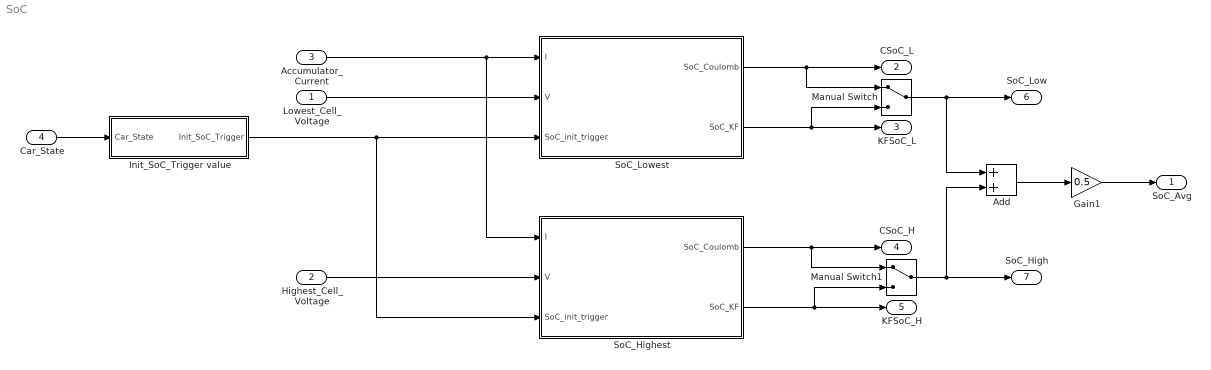
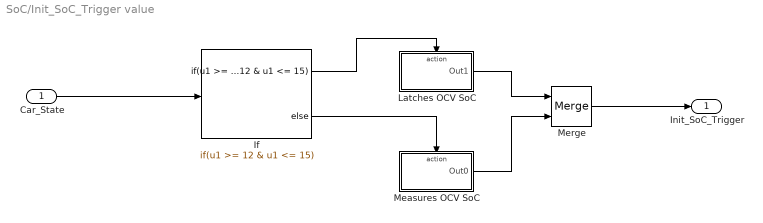
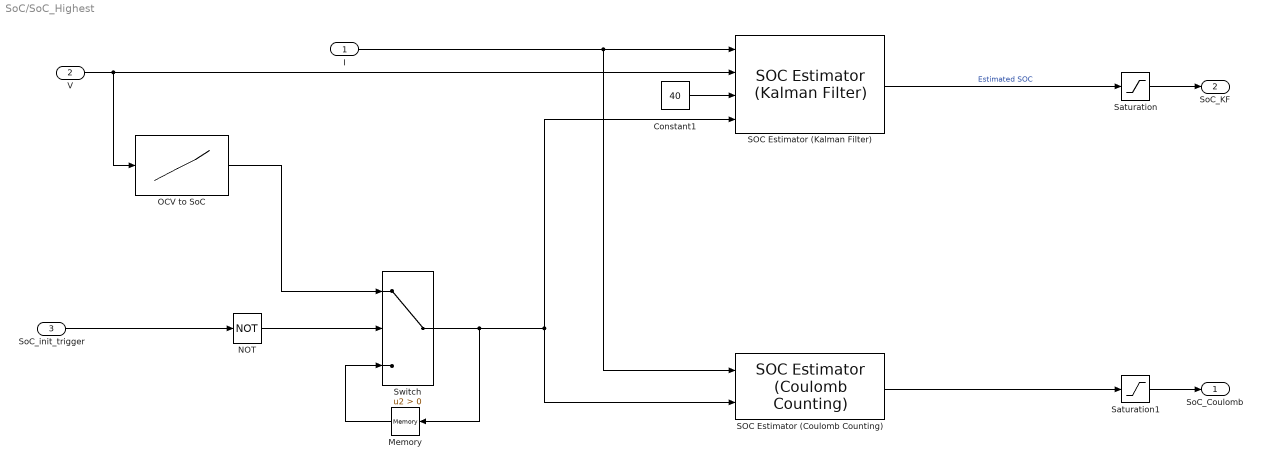
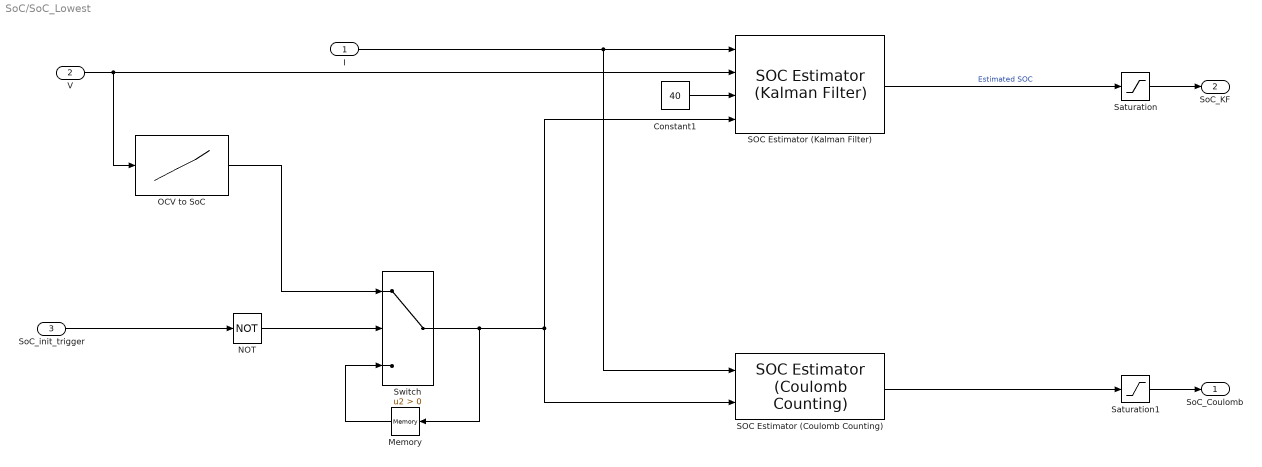
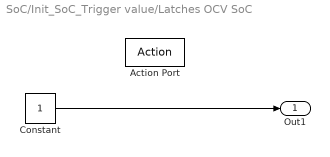
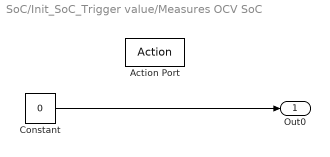
/*
 * SoC.c
 *
 * Academic License - for use in teaching, academic research, and meeting
 * course requirements at degree granting institutions only.  Not for
 * government, commercial, or other organizational use.
 *
 * Code generation for model "SoC".
 *
 * Model version              : 13.3
 * Simulink Coder version : 23.2 (R2023b) 01-Aug-2023
 * C source code generated on : Fri Apr 12 20:16:22 2024
 *
 * Target selection: irt.tlc
 * Note: GRT includes extra infrastructure and instrumentation for prototyping
 * Embedded hardware selection: Intel->x86-64 (Windows64)
 * Code generation objectives: Unspecified
 * Validation result: Not run
 */

#include "SoC.h"
#include "rtwtypes.h"
#include <math.h>
#include <string.h>
#include "look1_binlxpw.h"
#include "look2_binlxpw.h"
#include "SoC_private.h"
#include "rt_nonfinite.h"

/* Block signals (default storage) */
B_SoC_T SoC_B;

/* Block states (default storage) */
DW_SoC_T SoC_DW;

/* External inputs (root inport signals with default storage) */
ExtU_SoC_T SoC_U;

/* External outputs (root outports fed by signals with default storage) */
ExtY_SoC_T SoC_Y;

/* Real-time model */
static RT_MODEL_SoC_T SoC_M_;
RT_MODEL_SoC_T *const SoC_M = &SoC_M_;
static void rate_scheduler(void);

/*
 *         This function updates active task flag for each subrate.
 *         The function is called at model base rate, hence the
 *         generated code self-manages all its subrates.
 */
static void rate_scheduler(void)
{
  /* Compute which subrates run during the next base time step.  Subrates
   * are an integer multiple of the base rate counter.  Therefore, the subtask
   * counter is reset when it reaches its limit (zero means run).
   */
  (SoC_M->Timing.TaskCounters.TID[1])++;
  if ((SoC_M->Timing.TaskCounters.TID[1]) > 39) {/* Sample time: [1.0s, 0.0s] */
    SoC_M->Timing.TaskCounters.TID[1] = 0;
  }

  SoC_M->Timing.sampleHits[1] = (SoC_M->Timing.TaskCounters.TID[1] == 0) ? 1 : 0;
}

/* Model output function */
static void SoC_output(void)
{
  /* local block i/o variables */
  real_T rtb_Delay[2];

  /* local scratch DWork variables */
  int32_T ForEach_itr;
  int32_T ForEach_itr_n;
  int32_T ForEach_itr_o;
  real_T rtb_Assignment[4];
  real_T rtb_Sum1[4];
  real_T tmp[4];
  real_T rtb_Product3[2];
  real_T rtb_TmpSignalConversionAtProduc[2];
  real_T UnitDelayP_DSTATE;
  real_T rtb_Assignment_0;
  real_T rtb_Delay_0;
  real_T rtb_Delay_1;
  real_T rtb_ImpAsg_InsertedFor_SOC_at_g;
  real_T rtb_ImpAsg_InsertedFor_SOC_at_i;
  real_T rtb_MathFunction;
  real_T rtb_Saturation;
  real_T rtb_Sum1_0;
  real_T rtb_Sum_b;
  real_T rtb_TmpSignalConversionAtProd_0;
  int32_T rtb_Assignment_1;
  int32_T rtb_Merge;

  /* Outputs for IfAction SubSystem: '<S1>/Measures OCV SoC' incorporates:
   *  ActionPort: '<S5>/Action Port'
   */
  /* Outputs for IfAction SubSystem: '<S1>/Latches OCV SoC' incorporates:
   *  ActionPort: '<S4>/Action Port'
   */
  /* If: '<S1>/If' incorporates:
   *  Inport: '<Root>/Car_State'
   *  SignalConversion generated from: '<S4>/Out1'
   *  SignalConversion generated from: '<S5>/Out0'
   */
  rtb_Merge = ((SoC_U.Car_State >= 12.0) && (SoC_U.Car_State <= 15.0));

  /* End of Outputs for SubSystem: '<S1>/Latches OCV SoC' */
  /* End of Outputs for SubSystem: '<S1>/Measures OCV SoC' */

  /* Switch: '<S3>/Switch' incorporates:
   *  Logic: '<S3>/NOT'
   */
  if (rtb_Merge == 0) {
    /* Switch: '<S3>/Switch' incorporates:
     *  Inport: '<Root>/Lowest_Cell_Voltage'
     *  Lookup_n-D: '<S3>/OCV to SoC'
     */
    SoC_B.Switch = look1_binlxpw(SoC_U.Lowest_Cell_Voltage,
      rtCP_OCVtoSoC_bp01Data_n, rtCP_OCVtoSoC_tableData_k, 25U);
  } else {
    /* Switch: '<S3>/Switch' incorporates:
     *  Memory: '<S3>/Memory'
     */
    SoC_B.Switch = SoC_DW.Memory_PreviousInput;
  }

  /* End of Switch: '<S3>/Switch' */

  /* Outputs for Iterator SubSystem: '<S3>/SOC Estimator (Coulomb Counting)' incorporates:
   *  ForEach: '<S9>/For Each'
   */
  for (ForEach_itr_n = 0; ForEach_itr_n < 1; ForEach_itr_n++) {
    /* Gain: '<S9>/Gain' incorporates:
     *  Inport: '<Root>/Accumulator_Current'
     */
    SoC_B.CoreSubsys_l[ForEach_itr_n].Gain = 1.02880658436214E-5 *
      SoC_U.Accumulator_Current;
    if (SoC_M->Timing.TaskCounters.TID[1] == 0) {
      /* DiscreteIntegrator: '<S12>/Integrator' incorporates:
       *  ForEachSliceSelector generated from: '<S9>/InitialSOC'
       */
      if (SoC_DW.CoreSubsys_l[ForEach_itr_n].Integrator_IC_LOADING != 0) {
        SoC_DW.CoreSubsys_l[ForEach_itr_n].Integrator_DSTATE = SoC_B.Switch;
      }

      /* ForEachSliceAssignment generated from: '<S9>/SOC' incorporates:
       *  DiscreteIntegrator: '<S12>/Integrator'
       */
      rtb_ImpAsg_InsertedFor_SOC_at_g = SoC_DW.CoreSubsys_l[ForEach_itr_n].
        Integrator_DSTATE;
    }
  }

  /* End of Outputs for SubSystem: '<S3>/SOC Estimator (Coulomb Counting)' */
  if (SoC_M->Timing.TaskCounters.TID[1] == 0) {
    /* Saturate: '<S3>/Saturation1' */
    if (rtb_ImpAsg_InsertedFor_SOC_at_g > 100.0) {
      /* Saturate: '<S3>/Saturation1' */
      SoC_B.Saturation1 = 100.0;
    } else if (rtb_ImpAsg_InsertedFor_SOC_at_g < 0.0) {
      /* Saturate: '<S3>/Saturation1' */
      SoC_B.Saturation1 = 0.0;
    } else {
      /* Saturate: '<S3>/Saturation1' */
      SoC_B.Saturation1 = rtb_ImpAsg_InsertedFor_SOC_at_g;
    }

    /* End of Saturate: '<S3>/Saturation1' */
  }

  /* Switch: '<S2>/Switch' incorporates:
   *  Logic: '<S2>/NOT'
   */
  if (rtb_Merge == 0) {
    /* Switch: '<S2>/Switch' incorporates:
     *  Inport: '<Root>/Highest_Cell_Voltage'
     *  Lookup_n-D: '<S2>/OCV to SoC'
     */
    SoC_B.Switch_d = look1_binlxpw(SoC_U.Highest_Cell_Voltage,
      rtCP_OCVtoSoC_bp01Data, rtCP_OCVtoSoC_tableData, 25U);
  } else {
    /* Switch: '<S2>/Switch' incorporates:
     *  Memory: '<S2>/Memory'
     */
    SoC_B.Switch_d = SoC_DW.Memory_PreviousInput_p;
  }

  /* End of Switch: '<S2>/Switch' */

  /* Outputs for Iterator SubSystem: '<S2>/SOC Estimator (Coulomb Counting)' incorporates:
   *  ForEach: '<S6>/For Each'
   */
  for (ForEach_itr_o = 0; ForEach_itr_o < 1; ForEach_itr_o++) {
    /* Gain: '<S6>/Gain' incorporates:
     *  Inport: '<Root>/Accumulator_Current'
     */
    SoC_B.CoreSubsys[ForEach_itr_o].Gain = 1.02880658436214E-5 *
      SoC_U.Accumulator_Current;

    /* DiscreteIntegrator: '<S8>/Integrator' incorporates:
     *  ForEachSliceSelector generated from: '<S6>/InitialSOC'
     */
    if (SoC_DW.CoreSubsys[ForEach_itr_o].Integrator_IC_LOADING != 0) {
      SoC_DW.CoreSubsys[ForEach_itr_o].Integrator_DSTATE = SoC_B.Switch_d;
    }

    /* ForEachSliceAssignment generated from: '<S6>/SOC' incorporates:
     *  DiscreteIntegrator: '<S8>/Integrator'
     */
    SoC_Y.CSoC_H = SoC_DW.CoreSubsys[ForEach_itr_o].Integrator_DSTATE;
  }

  /* End of Outputs for SubSystem: '<S2>/SOC Estimator (Coulomb Counting)' */

  /* Saturate: '<S2>/Saturation1' */
  if (SoC_Y.CSoC_H > 100.0) {
    /* ForEachSliceAssignment generated from: '<S6>/SOC' */
    SoC_Y.CSoC_H = 100.0;
  } else if (SoC_Y.CSoC_H < 0.0) {
    /* ForEachSliceAssignment generated from: '<S6>/SOC' */
    SoC_Y.CSoC_H = 0.0;
  }

  /* End of Saturate: '<S2>/Saturation1' */

  /* Outport: '<Root>/SoC_Avg' incorporates:
   *  Gain: '<Root>/Gain1'
   *  Sum: '<Root>/Add'
   */
  SoC_Y.SoC_Avg = (SoC_B.Saturation1 + SoC_Y.CSoC_H) * 0.5;

  /* Outport: '<Root>/SoC_High' */
  SoC_Y.SoC_High = SoC_Y.CSoC_H;
  if (SoC_M->Timing.TaskCounters.TID[1] == 0) {
    /* Outport: '<Root>/CSoC_L' */
    SoC_Y.CSoC_L = SoC_B.Saturation1;

    /* Outport: '<Root>/SoC_Low' */
    SoC_Y.SoC_Low = SoC_B.Saturation1;
  }

  /* Outputs for Iterator SubSystem: '<S3>/SOC Estimator (Kalman Filter)' incorporates:
   *  ForEach: '<S10>/For Each'
   */
  for (ForEach_itr = 0; ForEach_itr < 1; ForEach_itr++) {
    /* RateTransition: '<S14>/Rate Transition3' incorporates:
     *  ForEachSliceSelector generated from: '<S10>/InitialSOC'
     *  Gain: '<S10>/Gain'
     *  Inport: '<Root>/Accumulator_Current'
     *  RateTransition: '<S14>/Rate Transition1'
     */
    if (SoC_M->Timing.TaskCounters.TID[1] == 0) {
      SoC_DW.CoreSubsys_j[ForEach_itr].RateTransition3_Buffer = SoC_B.Switch;

      /* SignalConversion generated from: '<S16>/Delay' incorporates:
       *  Constant: '<S16>/Constant1'
       *  ForEachSliceSelector generated from: '<S10>/InitialSOC'
       */
      SoC_B.CoreSubsys_j[ForEach_itr].TmpSignalConversionAtDelayInpor[0] =
        SoC_DW.CoreSubsys_j[ForEach_itr].RateTransition3_Buffer;
      SoC_B.CoreSubsys_j[ForEach_itr].TmpSignalConversionAtDelayInpor[1] = 0.0;

      /* Delay: '<S16>/Delay' */
      if (SoC_DW.CoreSubsys_j[ForEach_itr].icLoad) {
        SoC_DW.CoreSubsys_j[ForEach_itr].Delay_DSTATE[0] =
          SoC_B.CoreSubsys_j[ForEach_itr].TmpSignalConversionAtDelayInpor[0];
        SoC_DW.CoreSubsys_j[ForEach_itr].Delay_DSTATE[1] = 0.0;
      }

      /* Delay: '<S16>/Delay' */
      rtb_Delay[0] = SoC_DW.CoreSubsys_j[ForEach_itr].Delay_DSTATE[0];
      rtb_Delay[1] = SoC_DW.CoreSubsys_j[ForEach_itr].Delay_DSTATE[1];

      /* RateTransition: '<S14>/Rate Transition2' incorporates:
       *  Constant: '<S3>/Constant2'
       *  ForEachSliceSelector generated from: '<S10>/CellTemperature'
       */
      SoC_DW.CoreSubsys_j[ForEach_itr].RateTransition2_Buffer = 40.0;

      /* Lookup_n-D: '<S17>/2-D Lookup Table dV0' incorporates:
       *  RateTransition: '<S14>/Rate Transition2'
       */
      rtb_ImpAsg_InsertedFor_SOC_at_i = look2_binlxpw(rtb_Delay[0],
        SoC_DW.CoreSubsys_j[ForEach_itr].RateTransition2_Buffer,
        rtCP_uDLookupTabledV0_bp01Data, rtCP_uDLookupTabledV0_bp02Data,
        rtCP_uDLookupTabledV0_tableData, rtCP_uDLookupTabledV0_maxIndex, 7U);

      /* SignalConversion generated from: '<S17>/Transpose1' incorporates:
       *  Constant: '<S17>/Constant4'
       */
      rtb_Product3[0] = rtb_ImpAsg_InsertedFor_SOC_at_i;
      rtb_Product3[1] = -1.0;

      /* Lookup_n-D: '<S17>/2-D Lookup Table R1' incorporates:
       *  RateTransition: '<S14>/Rate Transition2'
       */
      rtb_Saturation = look2_binlxpw(rtb_Delay[0],
        SoC_DW.CoreSubsys_j[ForEach_itr].RateTransition2_Buffer,
        rtCP_uDLookupTableR1_bp01Data, rtCP_uDLookupTableR1_bp02Data,
        rtCP_uDLookupTableR1_tableData, rtCP_uDLookupTableR1_maxIndex, 7U);

      /* Math: '<S17>/Math Function' incorporates:
       *  Gain: '<S17>/-Ts'
       *  Lookup_n-D: '<S17>/2-D Lookup Table C1'
       *  Product: '<S17>/Product'
       *  Product: '<S17>/Product2'
       *  RateTransition: '<S14>/Rate Transition2'
       *
       * About '<S17>/Math Function':
       *  Operator: exp
       */
      rtb_MathFunction = exp(1.0 / (rtb_Saturation * look2_binlxpw(rtb_Delay[0],
        SoC_DW.CoreSubsys_j[ForEach_itr].RateTransition2_Buffer,
        rtCP_uDLookupTableC1_bp01Data, rtCP_uDLookupTableC1_bp02Data,
        rtCP_uDLookupTableC1_tableData, rtCP_uDLookupTableC1_maxIndex, 7U)) *
        -SoC_B.CoreSubsys_j[ForEach_itr].Probe[0]);

      /* SignalConversion generated from: '<S17>/Assignment' incorporates:
       *  Assignment: '<S17>/Assignment'
       *  Constant: '<S17>/Constant'
       */
      rtb_Assignment[0] = 1.0;
      rtb_Assignment[1] = 0.0;
      rtb_Assignment[2] = 0.0;

      /* Assignment: '<S17>/Assignment' */
      rtb_Assignment[3] = rtb_MathFunction;

      /* Product: '<S18>/Product2' incorporates:
       *  Assignment: '<S17>/Assignment'
       *  Math: '<S18>/Transpose'
       *  UnitDelay: '<S14>/Unit Delay - P'
       */
      for (rtb_Merge = 0; rtb_Merge < 2; rtb_Merge++) {
        rtb_ImpAsg_InsertedFor_SOC_at_g = SoC_DW.CoreSubsys_j[ForEach_itr].
          UnitDelayP_DSTATE[rtb_Merge + 2];
        UnitDelayP_DSTATE = SoC_DW.CoreSubsys_j[ForEach_itr]
          .UnitDelayP_DSTATE[rtb_Merge];
        tmp[rtb_Merge] = rtb_ImpAsg_InsertedFor_SOC_at_g * 0.0 +
          UnitDelayP_DSTATE;
        tmp[rtb_Merge + 2] = rtb_ImpAsg_InsertedFor_SOC_at_g * rtb_MathFunction
          + UnitDelayP_DSTATE * 0.0;
      }

      /* Product: '<S15>/Product2' */
      rtb_Sum_b = 0.0;

      /* Product: '<S18>/Product2' */
      rtb_ImpAsg_InsertedFor_SOC_at_g = tmp[1];
      rtb_Sum1_0 = tmp[0];
      rtb_Delay_0 = tmp[3];
      rtb_Delay_1 = tmp[2];
      for (rtb_Merge = 0; rtb_Merge < 2; rtb_Merge++) {
        /* Sum: '<S18>/Sum1' incorporates:
         *  Assignment: '<S17>/Assignment'
         *  Constant: '<S18>/Constant'
         *  Product: '<S18>/Product2'
         */
        rtb_Assignment_0 = rtb_Assignment[rtb_Merge + 2];
        rtb_Assignment_1 = (int32_T)rtb_Assignment[rtb_Merge];
        UnitDelayP_DSTATE = (rtb_Assignment_0 * rtb_ImpAsg_InsertedFor_SOC_at_g
                             + (real_T)rtb_Assignment_1 * rtb_Sum1_0) +
          rtCP_Constant_Value_j2w[rtb_Merge];
        rtb_Sum1[rtb_Merge] = UnitDelayP_DSTATE;

        /* Product: '<S15>/Product2' incorporates:
         *  Lookup_n-D: '<S17>/2-D Lookup Table dV0'
         *  Product: '<S15>/Product'
         */
        rtb_TmpSignalConversionAtProd_0 = UnitDelayP_DSTATE *
          rtb_ImpAsg_InsertedFor_SOC_at_i;

        /* Sum: '<S18>/Sum1' incorporates:
         *  Constant: '<S18>/Constant'
         *  Product: '<S18>/Product2'
         */
        UnitDelayP_DSTATE = (rtb_Assignment_0 * rtb_Delay_0 + (real_T)
                             rtb_Assignment_1 * rtb_Delay_1) +
          rtCP_Constant_Value_j2w[rtb_Merge + 2];
        rtb_Sum1[rtb_Merge + 2] = UnitDelayP_DSTATE;

        /* Product: '<S15>/Product2' incorporates:
         *  Product: '<S15>/Product'
         */
        rtb_TmpSignalConversionAtProd_0 -= UnitDelayP_DSTATE;
        rtb_TmpSignalConversionAtProduc[rtb_Merge] =
          rtb_TmpSignalConversionAtProd_0;

        /* Product: '<S15>/Product2' incorporates:
         *  Product: '<S15>/Product3'
         */
        rtb_Sum_b += rtb_Product3[rtb_Merge] * rtb_TmpSignalConversionAtProd_0;
      }

      /* Product: '<S15>/Divide' incorporates:
       *  Constant: '<S15>/Constant'
       *  Constant: '<S15>/Constant1'
       *  Product: '<S15>/Product2'
       *  Sum: '<S15>/Sum2'
       */
      rtb_Sum_b = 1.0 / (rtb_Sum_b + 0.1);

      /* Product: '<S15>/Product1' incorporates:
       *  Product: '<S15>/Product'
       *  SignalConversion generated from: '<S18>/Product1'
       */
      rtb_TmpSignalConversionAtProduc[0] *= rtb_Sum_b;
      rtb_TmpSignalConversionAtProduc[1] *= rtb_Sum_b;

      /* Sum: '<S15>/Sum3' incorporates:
       *  Constant: '<S15>/Constant2'
       *  Product: '<S15>/Product4'
       *  SignalConversion generated from: '<S18>/Product1'
       */
      tmp[0] = 1.0 - rtb_TmpSignalConversionAtProduc[0] *
        rtb_ImpAsg_InsertedFor_SOC_at_i;
      tmp[1] = 0.0 - rtb_ImpAsg_InsertedFor_SOC_at_i *
        rtb_TmpSignalConversionAtProduc[1];
      tmp[2] = 0.0 - (-rtb_TmpSignalConversionAtProduc[0]);
      tmp[3] = 1.0 - (-rtb_TmpSignalConversionAtProduc[1]);

      /* RateTransition: '<S14>/Rate Transition' incorporates:
       *  Inport: '<Root>/Lowest_Cell_Voltage'
       */
      SoC_DW.CoreSubsys_j[ForEach_itr].RateTransition_Buffer =
        SoC_U.Lowest_Cell_Voltage;
      SoC_DW.CoreSubsys_j[ForEach_itr].RateTransition1_Buffer =
        -SoC_U.Accumulator_Current;

      /* Sum: '<S14>/Sum' incorporates:
       *  Gain: '<S10>/Gain'
       *  Inport: '<Root>/Accumulator_Current'
       *  Lookup_n-D: '<S17>/2-D Lookup Table R0'
       *  Lookup_n-D: '<S17>/2-D Lookup Table V0'
       *  Product: '<S17>/Product6'
       *  RateTransition: '<S14>/Rate Transition'
       *  RateTransition: '<S14>/Rate Transition2'
       *  Sum: '<S17>/Sum2'
       */
      rtb_Sum_b = SoC_DW.CoreSubsys_j[ForEach_itr].RateTransition_Buffer -
        ((look2_binlxpw(rtb_Delay[0], SoC_DW.CoreSubsys_j[ForEach_itr].
                        RateTransition2_Buffer, rtCP_uDLookupTableV0_bp01Data,
                        rtCP_uDLookupTableV0_bp02Data,
                        rtCP_uDLookupTableV0_tableData,
                        rtCP_uDLookupTableV0_maxIndex, 7U) - look2_binlxpw
          (rtb_Delay[0], SoC_DW.CoreSubsys_j[ForEach_itr].RateTransition2_Buffer,
           rtCP_uDLookupTableR0_bp01Data, rtCP_uDLookupTableR0_bp02Data,
           rtCP_uDLookupTableR0_tableData, rtCP_uDLookupTableR0_maxIndex, 7U) *
          SoC_DW.CoreSubsys_j[ForEach_itr].RateTransition1_Buffer) - rtb_Delay[1]);

      /* SignalConversion generated from: '<S18>/Product1' incorporates:
       *  Constant: '<S17>/Constant1'
       *  Gain: '<S17>/-Ts'
       *  Gain: '<S17>/Gain'
       *  Product: '<S17>/Product4'
       *  Product: '<S18>/Product1'
       *  Sum: '<S17>/Sum'
       */
      rtb_Product3[0] = 1.02880658436214E-5 * -SoC_B.CoreSubsys_j[ForEach_itr].
        Probe[0] * SoC_DW.CoreSubsys_j[ForEach_itr].RateTransition1_Buffer;
      rtb_Product3[1] = (1.0 - rtb_MathFunction) * rtb_Saturation *
        SoC_DW.CoreSubsys_j[ForEach_itr].RateTransition1_Buffer;

      /* Product: '<S15>/Product5' incorporates:
       *  Sum: '<S18>/Sum1'
       */
      UnitDelayP_DSTATE = rtb_Sum1[0];
      rtb_Saturation = rtb_Sum1[1];
      rtb_MathFunction = rtb_Sum1[2];
      rtb_Sum1_0 = rtb_Sum1[3];

      /* Product: '<S18>/Product' */
      rtb_Delay_0 = rtb_Delay[0];
      rtb_Delay_1 = rtb_Delay[1];
      for (rtb_Merge = 0; rtb_Merge < 2; rtb_Merge++) {
        /* Product: '<S15>/Product5' */
        rtb_ImpAsg_InsertedFor_SOC_at_i = tmp[rtb_Merge];
        rtb_ImpAsg_InsertedFor_SOC_at_g = tmp[rtb_Merge + 2];
        SoC_B.CoreSubsys_j[ForEach_itr].Product5[rtb_Merge] =
          rtb_ImpAsg_InsertedFor_SOC_at_g * rtb_Saturation +
          rtb_ImpAsg_InsertedFor_SOC_at_i * UnitDelayP_DSTATE;
        SoC_B.CoreSubsys_j[ForEach_itr].Product5[rtb_Merge + 2] =
          rtb_ImpAsg_InsertedFor_SOC_at_g * rtb_Sum1_0 +
          rtb_ImpAsg_InsertedFor_SOC_at_i * rtb_MathFunction;

        /* Sum: '<S15>/Sum' incorporates:
         *  Assignment: '<S17>/Assignment'
         *  Product: '<S15>/Product3'
         *  Product: '<S18>/Product'
         *  SignalConversion generated from: '<S18>/Product1'
         *  Sum: '<S18>/Sum'
         */
        SoC_B.CoreSubsys_j[ForEach_itr].Sum[rtb_Merge] =
          ((rtb_Assignment[rtb_Merge + 2] * rtb_Delay_1 +
            rtb_Assignment[rtb_Merge] * rtb_Delay_0) + rtb_Product3[rtb_Merge])
          + rtb_TmpSignalConversionAtProduc[rtb_Merge] * rtb_Sum_b;
      }

      /* ForEachSliceAssignment generated from: '<S10>/SOC' */
      rtb_ImpAsg_InsertedFor_SOC_at_i = SoC_B.CoreSubsys_j[ForEach_itr].Sum[0];
    }

    /* End of RateTransition: '<S14>/Rate Transition3' */
  }

  /* End of Outputs for SubSystem: '<S3>/SOC Estimator (Kalman Filter)' */
  if (SoC_M->Timing.TaskCounters.TID[1] == 0) {
    /* Saturate: '<S3>/Saturation' */
    if (rtb_ImpAsg_InsertedFor_SOC_at_i > 100.0) {
      /* Outport: '<Root>/KFSoC_L' */
      SoC_Y.KFSoC_L = 100.0;
    } else if (rtb_ImpAsg_InsertedFor_SOC_at_i < 0.0) {
      /* Outport: '<Root>/KFSoC_L' */
      SoC_Y.KFSoC_L = 0.0;
    } else {
      /* Outport: '<Root>/KFSoC_L' */
      SoC_Y.KFSoC_L = rtb_ImpAsg_InsertedFor_SOC_at_i;
    }

    /* End of Saturate: '<S3>/Saturation' */
  }
}

/* Model update function */
static void SoC_update(void)
{
  /* local scratch DWork variables */
  int32_T ForEach_itr;
  int32_T ForEach_itr_n;
  int32_T ForEach_itr_o;

  /* Update for Memory: '<S3>/Memory' */
  SoC_DW.Memory_PreviousInput = SoC_B.Switch;

  /* Update for Iterator SubSystem: '<S3>/SOC Estimator (Coulomb Counting)' */
  for (ForEach_itr_n = 0; ForEach_itr_n < 1; ForEach_itr_n++) {
    if (SoC_M->Timing.TaskCounters.TID[1] == 0) {
      /* Update for DiscreteIntegrator: '<S12>/Integrator' */
      SoC_DW.CoreSubsys_l[ForEach_itr_n].Integrator_IC_LOADING = 0U;
      SoC_DW.CoreSubsys_l[ForEach_itr_n].Integrator_DSTATE +=
        SoC_B.CoreSubsys_l[ForEach_itr_n].Gain;
    }
  }

  /* End of Update for SubSystem: '<S3>/SOC Estimator (Coulomb Counting)' */

  /* Update for Memory: '<S2>/Memory' */
  SoC_DW.Memory_PreviousInput_p = SoC_B.Switch_d;

  /* Update for Iterator SubSystem: '<S2>/SOC Estimator (Coulomb Counting)' */
  for (ForEach_itr_o = 0; ForEach_itr_o < 1; ForEach_itr_o++) {
    /* Update for DiscreteIntegrator: '<S8>/Integrator' */
    SoC_DW.CoreSubsys[ForEach_itr_o].Integrator_IC_LOADING = 0U;
    SoC_DW.CoreSubsys[ForEach_itr_o].Integrator_DSTATE += 0.025 *
      SoC_B.CoreSubsys[ForEach_itr_o].Gain;
  }

  /* End of Update for SubSystem: '<S2>/SOC Estimator (Coulomb Counting)' */

  /* Update for Iterator SubSystem: '<S3>/SOC Estimator (Kalman Filter)' */
  for (ForEach_itr = 0; ForEach_itr < 1; ForEach_itr++) {
    if (SoC_M->Timing.TaskCounters.TID[1] == 0) {
      /* Update for Delay: '<S16>/Delay' */
      SoC_DW.CoreSubsys_j[ForEach_itr].icLoad = false;
      SoC_DW.CoreSubsys_j[ForEach_itr].Delay_DSTATE[0] =
        SoC_B.CoreSubsys_j[ForEach_itr].Sum[0];
      SoC_DW.CoreSubsys_j[ForEach_itr].Delay_DSTATE[1] =
        SoC_B.CoreSubsys_j[ForEach_itr].Sum[1];

      /* Update for UnitDelay: '<S14>/Unit Delay - P' incorporates:
       *  Product: '<S15>/Product5'
       */
      SoC_DW.CoreSubsys_j[ForEach_itr].UnitDelayP_DSTATE[0] =
        SoC_B.CoreSubsys_j[ForEach_itr].Product5[0];
      SoC_DW.CoreSubsys_j[ForEach_itr].UnitDelayP_DSTATE[1] =
        SoC_B.CoreSubsys_j[ForEach_itr].Product5[1];
      SoC_DW.CoreSubsys_j[ForEach_itr].UnitDelayP_DSTATE[2] =
        SoC_B.CoreSubsys_j[ForEach_itr].Product5[2];
      SoC_DW.CoreSubsys_j[ForEach_itr].UnitDelayP_DSTATE[3] =
        SoC_B.CoreSubsys_j[ForEach_itr].Product5[3];
    }
  }

  /* End of Update for SubSystem: '<S3>/SOC Estimator (Kalman Filter)' */

  /* Update absolute time for base rate */
  /* The "clockTick0" counts the number of times the code of this task has
   * been executed. The absolute time is the multiplication of "clockTick0"
   * and "Timing.stepSize0". Size of "clockTick0" ensures timer will not
   * overflow during the application lifespan selected.
   * Timer of this task consists of two 32 bit unsigned integers.
   * The two integers represent the low bits Timing.clockTick0 and the high bits
   * Timing.clockTickH0. When the low bit overflows to 0, the high bits increment.
   */
  if (!(++SoC_M->Timing.clockTick0)) {
    ++SoC_M->Timing.clockTickH0;
  }

  SoC_M->Timing.t[0] = SoC_M->Timing.clockTick0 * SoC_M->Timing.stepSize0 +
    SoC_M->Timing.clockTickH0 * SoC_M->Timing.stepSize0 * 4294967296.0;
  if (SoC_M->Timing.TaskCounters.TID[1] == 0) {
    /* Update absolute timer for sample time: [1.0s, 0.0s] */
    /* The "clockTick1" counts the number of times the code of this task has
     * been executed. The absolute time is the multiplication of "clockTick1"
     * and "Timing.stepSize1". Size of "clockTick1" ensures timer will not
     * overflow during the application lifespan selected.
     * Timer of this task consists of two 32 bit unsigned integers.
     * The two integers represent the low bits Timing.clockTick1 and the high bits
     * Timing.clockTickH1. When the low bit overflows to 0, the high bits increment.
     */
    if (!(++SoC_M->Timing.clockTick1)) {
      ++SoC_M->Timing.clockTickH1;
    }

    SoC_M->Timing.t[1] = SoC_M->Timing.clockTick1 * SoC_M->Timing.stepSize1 +
      SoC_M->Timing.clockTickH1 * SoC_M->Timing.stepSize1 * 4294967296.0;
  }

  rate_scheduler();
}
